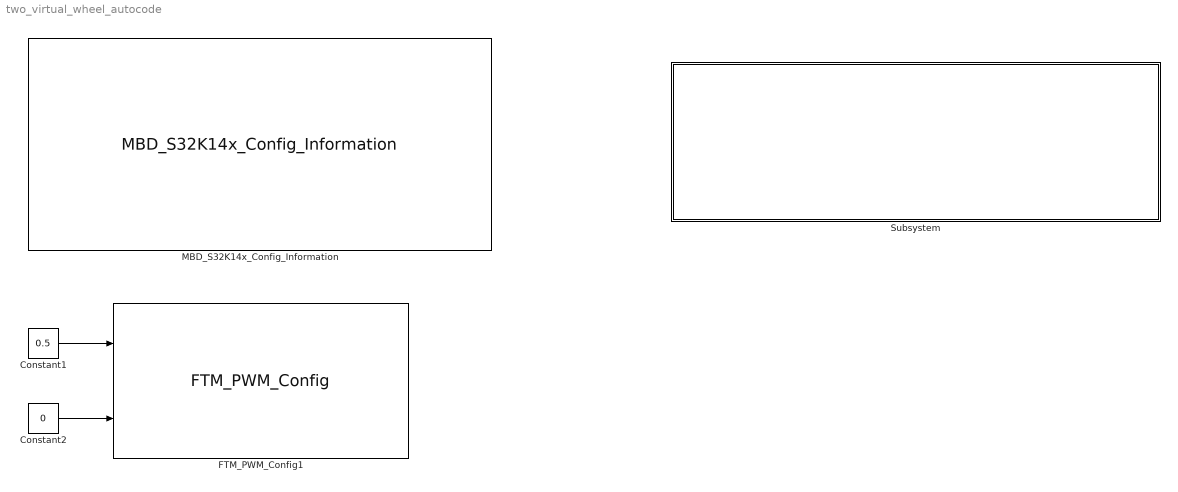
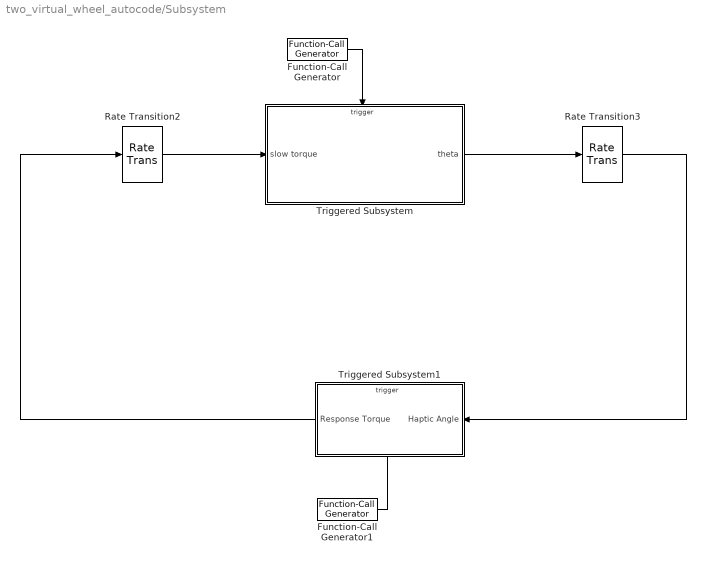
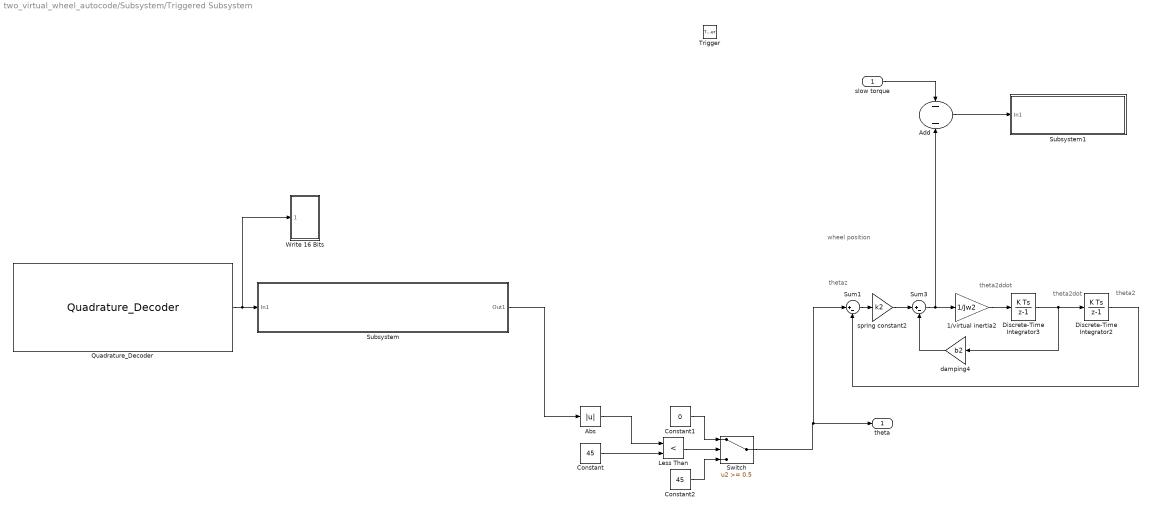
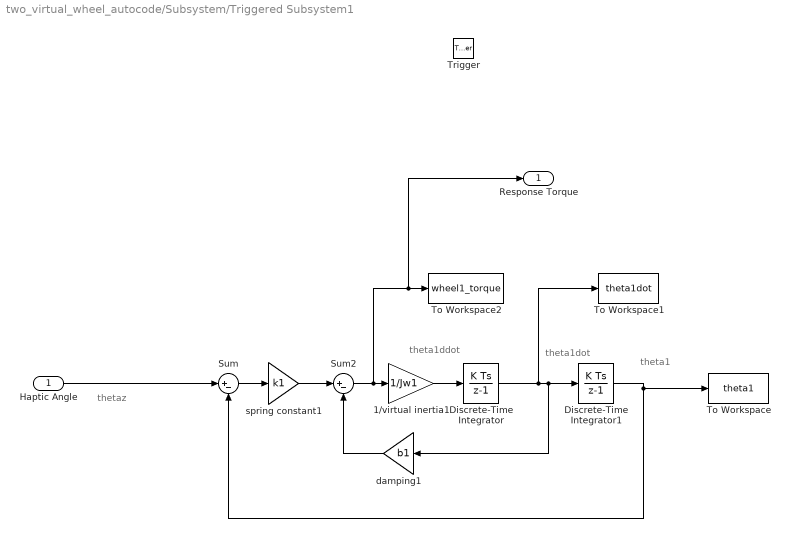
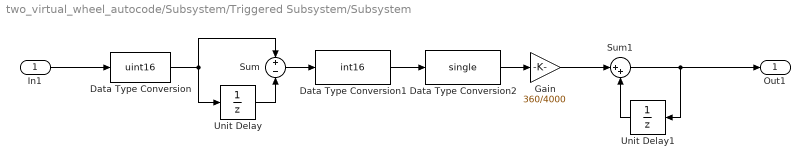
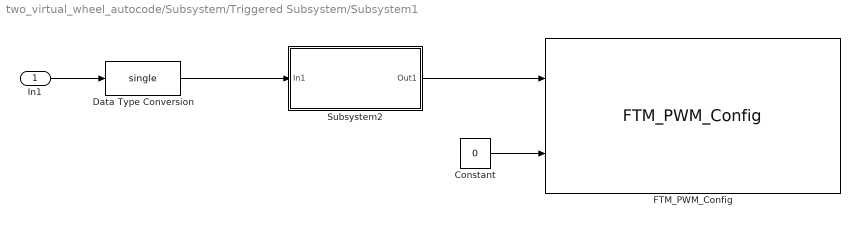
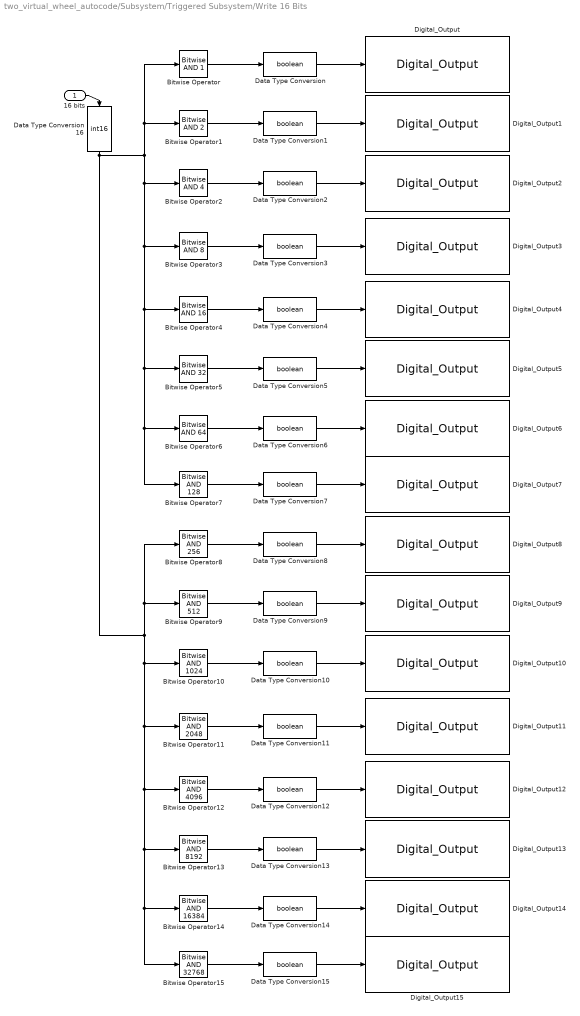
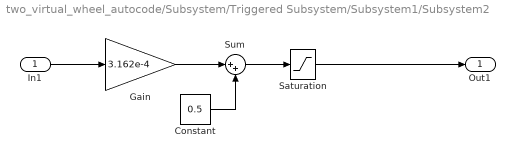
/*
 * Academic License - for use in teaching, academic research, and meeting
 * course requirements at degree granting institutions only.  Not for
 * government, commercial, or other organizational use.
 *
 * File: two_virtual_wheel_autocode.c
 *
 * Code generated for Simulink model 'two_virtual_wheel_autocode'.
 *
 * Model version                   : 1.77
 * Simulink Coder version          : 8.14 (R2018a) 06-Feb-2018
 * MBDT for S32K1xx Series Version : 2018.R1 (R2016b-R2018a) 23-Jul-2018
 * C/C++ source code generated on  : Fri Mar 29 12:54:46 2019
 *
 * Target selection: mbd_s32k14.tlc
 * Embedded hardware selection: ARM Compatible->ARM Cortex
 * Emulation hardware selection:
 *    Differs from embedded hardware (MATLAB Host)
 * Code generation objective: Traceability
 * Validation result: Not run
 */

#include "two_virtual_wheel_autocode.h"
#include "two_virtual_wheel_autocode_private.h"

/* Block signals (default storage) */
B_two_virtual_wheel_autocode_T two_virtual_wheel_autocode_B;

/* Block states (default storage) */
DW_two_virtual_wheel_autocode_T two_virtual_wheel_autocode_DW;

/* Real-time model */
RT_MODEL_two_virtual_wheel_au_T two_virtual_wheel_autocode_M_;
RT_MODEL_two_virtual_wheel_au_T *const two_virtual_wheel_autocode_M =
  &two_virtual_wheel_autocode_M_;
static void rate_monotonic_scheduler(void);

/*
 * Set which subrates need to run this base step (base rate always runs).
 * This function must be called prior to calling the model step function
 * in order to "remember" which rates need to run this base step.  The
 * buffering of events allows for overlapping preemption.
 */
void two_virtual_wheel_autocode_SetEventsForThisBaseStep(boolean_T *eventFlags)
{
  /* Task runs when its counter is zero, computed via rtmStepTask macro */
  eventFlags[1] = ((boolean_T)rtmStepTask(two_virtual_wheel_autocode_M, 1));
  eventFlags[2] = ((boolean_T)rtmStepTask(two_virtual_wheel_autocode_M, 2));
}

/*
 *   This function updates active task flag for each subrate
 * and rate transition flags for tasks that exchange data.
 * The function assumes rate-monotonic multitasking scheduler.
 * The function must be called at model base rate so that
 * the generated code self-manages all its subrates and rate
 * transition flags.
 */
static void rate_monotonic_scheduler(void)
{
  /* To ensure a deterministic data transfer between two rates,
   * data is transferred at the priority of a fast task and the frequency
   * of the slow task.  The following flags indicate when the data transfer
   * happens.  That is, a rate interaction flag is set true when both rates
   * will run, and false otherwise.
   */

  /* tid 1 shares data with slower tid rate: 2 */
  if (two_virtual_wheel_autocode_M->Timing.TaskCounters.TID[1] == 0) {
    two_virtual_wheel_autocode_M->Timing.RateInteraction.TID1_2 =
      (two_virtual_wheel_autocode_M->Timing.TaskCounters.TID[2] == 0);
  }

  /* Compute which subrates run during the next base time step.  Subrates
   * are an integer multiple of the base rate counter.  Therefore, the subtask
   * counter is reset when it reaches its limit (zero means run).
   */
  (two_virtual_wheel_autocode_M->Timing.TaskCounters.TID[1])++;
  if ((two_virtual_wheel_autocode_M->Timing.TaskCounters.TID[1]) > 1) {/* Sample time: [0.002s, 0.0s] */
    two_virtual_wheel_autocode_M->Timing.TaskCounters.TID[1] = 0;
  }

  (two_virtual_wheel_autocode_M->Timing.TaskCounters.TID[2])++;
  if ((two_virtual_wheel_autocode_M->Timing.TaskCounters.TID[2]) > 19) {/* Sample time: [0.02s, 0.0s] */
    two_virtual_wheel_autocode_M->Timing.TaskCounters.TID[2] = 0;
  }
}

/* Model step function for TID0 */
void two_virtual_wheel_autocode_step0(void) /* Sample time: [0.001s, 0.0s] */
{
  {                                    /* Sample time: [0.001s, 0.0s] */
    rate_monotonic_scheduler();
  }
}

/* Model step function for TID1 */
void two_virtual_wheel_autocode_step1(void) /* Sample time: [0.002s, 0.0s] */
{
  uint16_T rtb_DataTypeConversion;
  real32_T rtb_Sum3;
  int32_T Switch;
  uint32_T TriggeredSubsystem_ELAPS_T;
  uint32_T TriggeredSubsystem_ELAPS_T_tmp;
  real32_T DiscreteTimeIntegrator2_DSTATE_;

  /* S-Function (ftm_s32k14_pwm_config): '<Root>/FTM_PWM_Config1' incorporates:
   *  Constant: '<Root>/Constant1'
   *  Constant: '<Root>/Constant2'
   */
  {
    uint16_t dutyA = FTM_MAX_DUTY_CYCLE * 0.5F;
    FTM_DRV_UpdatePwmChannel(FTM_PWM3, 0U, FTM_PWM_UPDATE_IN_DUTY_CYCLE, dutyA,
      0, true);
  }

  /* RateTransition: '<S1>/Rate Transition2' */
  if (two_virtual_wheel_autocode_M->Timing.RateInteraction.TID1_2) {
    two_virtual_wheel_autocode_B.RateTransition2 =
      two_virtual_wheel_autocode_DW.RateTransition2_Buffer0;
  }

  /* End of RateTransition: '<S1>/Rate Transition2' */

  /* S-Function (fcncallgen): '<S1>/Function-Call Generator' incorporates:
   *  SubSystem: '<S1>/Triggered Subsystem'
   */
  TriggeredSubsystem_ELAPS_T_tmp =
    two_virtual_wheel_autocode_M->Timing.clockTick1;
  TriggeredSubsystem_ELAPS_T = TriggeredSubsystem_ELAPS_T_tmp -
    two_virtual_wheel_autocode_DW.TriggeredSubsystem_PREV_T;
  two_virtual_wheel_autocode_DW.TriggeredSubsystem_PREV_T =
    TriggeredSubsystem_ELAPS_T_tmp;

  /* S-Function (ftm_s32k14_quadrature_decoder): '<S2>/Quadrature_Decoder' */

  /* FTM2: get counter value */
  two_virtual_wheel_autocode_B.Quadrature_Decoder = FTM_DRV_GetCounter (FTM2);

  /* DataTypeConversion: '<S4>/Data Type Conversion' */
  rtb_DataTypeConversion = (uint16_T)
    two_virtual_wheel_autocode_B.Quadrature_Decoder;

  /* Sum: '<S4>/Sum1' incorporates:
   *  DataTypeConversion: '<S4>/Data Type Conversion1'
   *  DataTypeConversion: '<S4>/Data Type Conversion2'
   *  Gain: '<S4>/Gain'
   *  Sum: '<S4>/Sum'
   *  UnitDelay: '<S4>/Unit Delay'
   *  UnitDelay: '<S4>/Unit Delay1'
   */
  two_virtual_wheel_autocode_DW.UnitDelay1_DSTATE += (real32_T)(int16_T)
    (rtb_DataTypeConversion - two_virtual_wheel_autocode_DW.UnitDelay_DSTATE) *
    0.09F;

  /* Switch: '<S2>/Switch' incorporates:
   *  Abs: '<S2>/Abs'
   *  Constant: '<S2>/Constant'
   *  Constant: '<S2>/Constant1'
   *  Constant: '<S2>/Constant2'
   *  RelationalOperator: '<S2>/Less Than'
   *  UnitDelay: '<S4>/Unit Delay1'
   */
  if ((real32_T)fabs(two_virtual_wheel_autocode_DW.UnitDelay1_DSTATE) < 45.0F) {
    Switch = 0;
  } else {
    Switch = 45;
  }

  /* End of Switch: '<S2>/Switch' */

  /* Sum: '<S2>/Sum3' incorporates:
   *  DiscreteIntegrator: '<S2>/Discrete-Time Integrator2'
   *  DiscreteIntegrator: '<S2>/Discrete-Time Integrator3'
   *  Gain: '<S2>/damping4'
   *  Gain: '<S2>/spring  constant2'
   *  Sum: '<S2>/Sum1'
   */
  rtb_Sum3 = ((real32_T)Switch -
              two_virtual_wheel_autocode_DW.DiscreteTimeIntegrator2_DSTATE) *
    7.5F - 0.015F * two_virtual_wheel_autocode_DW.DiscreteTimeIntegrator3_DSTATE;

  /* Sum: '<S7>/Sum' incorporates:
   *  Constant: '<S7>/Constant'
   *  Gain: '<S7>/Gain'
   *  Sum: '<S2>/Add'
   */
  two_virtual_wheel_autocode_B.Saturation = ((0.0F -
    two_virtual_wheel_autocode_B.RateTransition2) - rtb_Sum3) * 0.0003162F +
    0.5F;

  /* Saturate: '<S7>/Saturation' */
  if (two_virtual_wheel_autocode_B.Saturation > 0.76F) {
    /* Sum: '<S7>/Sum' */
    two_virtual_wheel_autocode_B.Saturation = 0.76F;
  } else {
    if (two_virtual_wheel_autocode_B.Saturation < 0.24F) {
      /* Sum: '<S7>/Sum' */
      two_virtual_wheel_autocode_B.Saturation = 0.24F;
    }
  }

  /* End of Saturate: '<S7>/Saturation' */

  /* S-Function (ftm_s32k14_pwm_config): '<S5>/FTM_PWM_Config' incorporates:
   *  Constant: '<S5>/Constant'
   */
  {
    uint16_t dutyA = FTM_MAX_DUTY_CYCLE *
      two_virtual_wheel_autocode_B.Saturation;
    FTM_DRV_UpdatePwmChannel(FTM_PWM0, 0U, FTM_PWM_UPDATE_IN_DUTY_CYCLE, dutyA,
      0, true);
  }

  /* DataTypeConversion: '<S6>/Data Type Conversion' incorporates:
   *  S-Function (sfix_bitop): '<S6>/Bitwise Operator'
   */
  two_virtual_wheel_autocode_B.DataTypeConversion =
    ((two_virtual_wheel_autocode_B.Quadrature_Decoder & 1U) != 0U);

  /* S-Function (gpio_s32k14_output): '<S6>/Digital_Output' */

  /* GPOPORTD0 Data Signal Update */
  if (two_virtual_wheel_autocode_B.DataTypeConversion) {
    PINS_DRV_SetPins(PTD, 1UL<<0);
  } else {
    PINS_DRV_ClearPins(PTD, 1UL<<0);
  }

  /* DataTypeConversion: '<S6>/Data Type Conversion1' incorporates:
   *  S-Function (sfix_bitop): '<S6>/Bitwise Operator1'
   */
  two_virtual_wheel_autocode_B.DataTypeConversion1 =
    ((two_virtual_wheel_autocode_B.Quadrature_Decoder & 2U) != 0U);

  /* S-Function (gpio_s32k14_output): '<S6>/Digital_Output1' */

  /* GPOPORTD1 Data Signal Update */
  if (two_virtual_wheel_autocode_B.DataTypeConversion1) {
    PINS_DRV_SetPins(PTD, 1UL<<1);
  } else {
    PINS_DRV_ClearPins(PTD, 1UL<<1);
  }

  /* DataTypeConversion: '<S6>/Data Type Conversion10' incorporates:
   *  S-Function (sfix_bitop): '<S6>/Bitwise Operator10'
   */
  two_virtual_wheel_autocode_B.DataTypeConversion10 =
    ((two_virtual_wheel_autocode_B.Quadrature_Decoder & 1024U) != 0U);

  /* S-Function (gpio_s32k14_output): '<S6>/Digital_Output10' */

  /* GPOPORTD10 Data Signal Update */
  if (two_virtual_wheel_autocode_B.DataTypeConversion10) {
    PINS_DRV_SetPins(PTD, 1UL<<10);
  } else {
    PINS_DRV_ClearPins(PTD, 1UL<<10);
  }

  /* DataTypeConversion: '<S6>/Data Type Conversion11' incorporates:
   *  S-Function (sfix_bitop): '<S6>/Bitwise Operator11'
   */
  two_virtual_wheel_autocode_B.DataTypeConversion11 =
    ((two_virtual_wheel_autocode_B.Quadrature_Decoder & 2048U) != 0U);

  /* S-Function (gpio_s32k14_output): '<S6>/Digital_Output11' */

  /* GPOPORTD11 Data Signal Update */
  if (two_virtual_wheel_autocode_B.DataTypeConversion11) {
    PINS_DRV_SetPins(PTD, 1UL<<11);
  } else {
    PINS_DRV_ClearPins(PTD, 1UL<<11);
  }

  /* DataTypeConversion: '<S6>/Data Type Conversion12' incorporates:
   *  S-Function (sfix_bitop): '<S6>/Bitwise Operator12'
   */
  two_virtual_wheel_autocode_B.DataTypeConversion12 =
    ((two_virtual_wheel_autocode_B.Quadrature_Decoder & 4096U) != 0U);

  /* S-Function (gpio_s32k14_output): '<S6>/Digital_Output12' */

  /* GPOPORTD12 Data Signal Update */
  if (two_virtual_wheel_autocode_B.DataTypeConversion12) {
    PINS_DRV_SetPins(PTD, 1UL<<12);
  } else {
    PINS_DRV_ClearPins(PTD, 1UL<<12);
  }

  /* DataTypeConversion: '<S6>/Data Type Conversion13' incorporates:
   *  S-Function (sfix_bitop): '<S6>/Bitwise Operator13'
   */
  two_virtual_wheel_autocode_B.DataTypeConversion13 =
    ((two_virtual_wheel_autocode_B.Quadrature_Decoder & 8192U) != 0U);

  /* S-Function (gpio_s32k14_output): '<S6>/Digital_Output13' */

  /* GPOPORTD13 Data Signal Update */
  if (two_virtual_wheel_autocode_B.DataTypeConversion13) {
    PINS_DRV_SetPins(PTD, 1UL<<13);
  } else {
    PINS_DRV_ClearPins(PTD, 1UL<<13);
  }

  /* DataTypeConversion: '<S6>/Data Type Conversion14' incorporates:
   *  S-Function (sfix_bitop): '<S6>/Bitwise Operator14'
   */
  two_virtual_wheel_autocode_B.DataTypeConversion14 =
    ((two_virtual_wheel_autocode_B.Quadrature_Decoder & 16384U) != 0U);

  /* S-Function (gpio_s32k14_output): '<S6>/Digital_Output14' */

  /* GPOPORTD14 Data Signal Update */
  if (two_virtual_wheel_autocode_B.DataTypeConversion14) {
    PINS_DRV_SetPins(PTD, 1UL<<14);
  } else {
    PINS_DRV_ClearPins(PTD, 1UL<<14);
  }

  /* DataTypeConversion: '<S6>/Data Type Conversion15' incorporates:
   *  S-Function (sfix_bitop): '<S6>/Bitwise Operator15'
   */
  two_virtual_wheel_autocode_B.DataTypeConversion15 = ((int16_T)
    (two_virtual_wheel_autocode_B.Quadrature_Decoder & MIN_int16_T) != 0);

  /* S-Function (gpio_s32k14_output): '<S6>/Digital_Output15' */

  /* GPOPORTD15 Data Signal Update */
  if (two_virtual_wheel_autocode_B.DataTypeConversion15) {
    PINS_DRV_SetPins(PTD, 1UL<<15);
  } else {
    PINS_DRV_ClearPins(PTD, 1UL<<15);
  }

  /* DataTypeConversion: '<S6>/Data Type Conversion2' incorporates:
   *  S-Function (sfix_bitop): '<S6>/Bitwise Operator2'
   */
  two_virtual_wheel_autocode_B.DataTypeConversion2 =
    ((two_virtual_wheel_autocode_B.Quadrature_Decoder & 4U) != 0U);

  /* S-Function (gpio_s32k14_output): '<S6>/Digital_Output2' */

  /* GPOPORTD2 Data Signal Update */
  if (two_virtual_wheel_autocode_B.DataTypeConversion2) {
    PINS_DRV_SetPins(PTD, 1UL<<2);
  } else {
    PINS_DRV_ClearPins(PTD, 1UL<<2);
  }

  /* DataTypeConversion: '<S6>/Data Type Conversion3' incorporates:
   *  S-Function (sfix_bitop): '<S6>/Bitwise Operator3'
   */
  two_virtual_wheel_autocode_B.DataTypeConversion3 =
    ((two_virtual_wheel_autocode_B.Quadrature_Decoder & 8U) != 0U);

  /* S-Function (gpio_s32k14_output): '<S6>/Digital_Output3' */

  /* GPOPORTD3 Data Signal Update */
  if (two_virtual_wheel_autocode_B.DataTypeConversion3) {
    PINS_DRV_SetPins(PTD, 1UL<<3);
  } else {
    PINS_DRV_ClearPins(PTD, 1UL<<3);
  }

  /* DataTypeConversion: '<S6>/Data Type Conversion4' incorporates:
   *  S-Function (sfix_bitop): '<S6>/Bitwise Operator4'
   */
  two_virtual_wheel_autocode_B.DataTypeConversion4 =
    ((two_virtual_wheel_autocode_B.Quadrature_Decoder & 16U) != 0U);

  /* S-Function (gpio_s32k14_output): '<S6>/Digital_Output4' */

  /* GPOPORTD4 Data Signal Update */
  if (two_virtual_wheel_autocode_B.DataTypeConversion4) {
    PINS_DRV_SetPins(PTD, 1UL<<4);
  } else {
    PINS_DRV_ClearPins(PTD, 1UL<<4);
  }

  /* DataTypeConversion: '<S6>/Data Type Conversion5' incorporates:
   *  S-Function (sfix_bitop): '<S6>/Bitwise Operator5'
   */
  two_virtual_wheel_autocode_B.DataTypeConversion5 =
    ((two_virtual_wheel_autocode_B.Quadrature_Decoder & 32U) != 0U);

  /* S-Function (gpio_s32k14_output): '<S6>/Digital_Output5' */

  /* GPOPORTD5 Data Signal Update */
  if (two_virtual_wheel_autocode_B.DataTypeConversion5) {
    PINS_DRV_SetPins(PTD, 1UL<<5);
  } else {
    PINS_DRV_ClearPins(PTD, 1UL<<5);
  }

  /* DataTypeConversion: '<S6>/Data Type Conversion6' incorporates:
   *  S-Function (sfix_bitop): '<S6>/Bitwise Operator6'
   */
  two_virtual_wheel_autocode_B.DataTypeConversion6 =
    ((two_virtual_wheel_autocode_B.Quadrature_Decoder & 64U) != 0U);

  /* S-Function (gpio_s32k14_output): '<S6>/Digital_Output6' */

  /* GPOPORTD6 Data Signal Update */
  if (two_virtual_wheel_autocode_B.DataTypeConversion6) {
    PINS_DRV_SetPins(PTD, 1UL<<6);
  } else {
    PINS_DRV_ClearPins(PTD, 1UL<<6);
  }

  /* DataTypeConversion: '<S6>/Data Type Conversion7' incorporates:
   *  S-Function (sfix_bitop): '<S6>/Bitwise Operator7'
   */
  two_virtual_wheel_autocode_B.DataTypeConversion7 =
    ((two_virtual_wheel_autocode_B.Quadrature_Decoder & 128U) != 0U);

  /* S-Function (gpio_s32k14_output): '<S6>/Digital_Output7' */

  /* GPOPORTD7 Data Signal Update */
  if (two_virtual_wheel_autocode_B.DataTypeConversion7) {
    PINS_DRV_SetPins(PTD, 1UL<<7);
  } else {
    PINS_DRV_ClearPins(PTD, 1UL<<7);
  }

  /* DataTypeConversion: '<S6>/Data Type Conversion8' incorporates:
   *  S-Function (sfix_bitop): '<S6>/Bitwise Operator8'
   */
  two_virtual_wheel_autocode_B.DataTypeConversion8 =
    ((two_virtual_wheel_autocode_B.Quadrature_Decoder & 256U) != 0U);

  /* S-Function (gpio_s32k14_output): '<S6>/Digital_Output8' */

  /* GPOPORTD8 Data Signal Update */
  if (two_virtual_wheel_autocode_B.DataTypeConversion8) {
    PINS_DRV_SetPins(PTD, 1UL<<8);
  } else {
    PINS_DRV_ClearPins(PTD, 1UL<<8);
  }

  /* DataTypeConversion: '<S6>/Data Type Conversion9' incorporates:
   *  S-Function (sfix_bitop): '<S6>/Bitwise Operator9'
   */
  two_virtual_wheel_autocode_B.DataTypeConversion9 =
    ((two_virtual_wheel_autocode_B.Quadrature_Decoder & 512U) != 0U);

  /* S-Function (gpio_s32k14_output): '<S6>/Digital_Output9' */

  /* GPOPORTD9 Data Signal Update */
  if (two_virtual_wheel_autocode_B.DataTypeConversion9) {
    PINS_DRV_SetPins(PTD, 1UL<<9);
  } else {
    PINS_DRV_ClearPins(PTD, 1UL<<9);
  }

  /* Update for UnitDelay: '<S4>/Unit Delay' */
  two_virtual_wheel_autocode_DW.UnitDelay_DSTATE = rtb_DataTypeConversion;

  /* Update for DiscreteIntegrator: '<S2>/Discrete-Time Integrator2' incorporates:
   *  DiscreteIntegrator: '<S2>/Discrete-Time Integrator3'
   *  DiscreteIntegrator: '<S2>/Discrete-Time Integrator3'
   */
  DiscreteTimeIntegrator2_DSTATE_ = 0.002F * (real32_T)
    TriggeredSubsystem_ELAPS_T;
  two_virtual_wheel_autocode_DW.DiscreteTimeIntegrator2_DSTATE +=
    DiscreteTimeIntegrator2_DSTATE_ *
    two_virtual_wheel_autocode_DW.DiscreteTimeIntegrator3_DSTATE;

  /* Update for DiscreteIntegrator: '<S2>/Discrete-Time Integrator3' incorporates:
   *  Gain: '<S2>/1//virtual inertia2'
   */
  two_virtual_wheel_autocode_DW.DiscreteTimeIntegrator3_DSTATE +=
    DiscreteTimeIntegrator2_DSTATE_ * (533.333313F * rtb_Sum3);

  /* End of Outputs for S-Function (fcncallgen): '<S1>/Function-Call Generator' */

  /* RateTransition: '<S1>/Rate Transition3' */
  if (two_virtual_wheel_autocode_M->Timing.RateInteraction.TID1_2) {
    two_virtual_wheel_autocode_B.RateTransition3 = (real32_T)Switch;
  }

  /* End of RateTransition: '<S1>/Rate Transition3' */

  /* Update absolute time */
  /* The "clockTick1" counts the number of times the code of this task has
   * been executed. The resolution of this integer timer is 0.002, which is the step size
   * of the task. Size of "clockTick1" ensures timer will not overflow during the
   * application lifespan selected.
   */
  two_virtual_wheel_autocode_M->Timing.clockTick1++;
}

/* Model step function for TID2 */
void two_virtual_wheel_autocode_step2(void) /* Sample time: [0.02s, 0.0s] */
{
  real32_T Sum2;
  uint32_T TriggeredSubsystem1_ELAPS_T;
  uint32_T TriggeredSubsystem1_ELAPS_T_tmp;
  real32_T DiscreteTimeIntegrator1_DSTATE_;

  /* S-Function (fcncallgen): '<S1>/Function-Call Generator1' incorporates:
   *  SubSystem: '<S1>/Triggered Subsystem1'
   */
  TriggeredSubsystem1_ELAPS_T_tmp =
    two_virtual_wheel_autocode_M->Timing.clockTick2;
  TriggeredSubsystem1_ELAPS_T = TriggeredSubsystem1_ELAPS_T_tmp -
    two_virtual_wheel_autocode_DW.TriggeredSubsystem1_PREV_T;
  two_virtual_wheel_autocode_DW.TriggeredSubsystem1_PREV_T =
    TriggeredSubsystem1_ELAPS_T_tmp;

  /* Sum: '<S3>/Sum2' incorporates:
   *  DiscreteIntegrator: '<S3>/Discrete-Time Integrator'
   *  DiscreteIntegrator: '<S3>/Discrete-Time Integrator1'
   *  Gain: '<S3>/damping1'
   *  Gain: '<S3>/spring  constant1'
   *  Sum: '<S3>/Sum'
   */
  Sum2 = (two_virtual_wheel_autocode_B.RateTransition3 -
          two_virtual_wheel_autocode_DW.DiscreteTimeIntegrator1_DSTATE) * 7.5F -
    0.15F * two_virtual_wheel_autocode_DW.DiscreteTimeIntegrator_DSTATE;

  /* Update for DiscreteIntegrator: '<S3>/Discrete-Time Integrator1' incorporates:
   *  DiscreteIntegrator: '<S3>/Discrete-Time Integrator'
   *  DiscreteIntegrator: '<S3>/Discrete-Time Integrator'
   */
  DiscreteTimeIntegrator1_DSTATE_ = 0.02F * (real32_T)
    TriggeredSubsystem1_ELAPS_T;
  two_virtual_wheel_autocode_DW.DiscreteTimeIntegrator1_DSTATE +=
    DiscreteTimeIntegrator1_DSTATE_ *
    two_virtual_wheel_autocode_DW.DiscreteTimeIntegrator_DSTATE;

  /* Update for DiscreteIntegrator: '<S3>/Discrete-Time Integrator' incorporates:
   *  Gain: '<S3>/1//virtual inertia1'
   */
  two_virtual_wheel_autocode_DW.DiscreteTimeIntegrator_DSTATE +=
    DiscreteTimeIntegrator1_DSTATE_ * (5.33333349F * Sum2);

  /* End of Outputs for S-Function (fcncallgen): '<S1>/Function-Call Generator1' */

  /* Update for RateTransition: '<S1>/Rate Transition2' */
  two_virtual_wheel_autocode_DW.RateTransition2_Buffer0 = Sum2;

  /* Update absolute time */
  /* The "clockTick2" counts the number of times the code of this task has
   * been executed. The resolution of this integer timer is 0.02, which is the step size
   * of the task. Size of "clockTick2" ensures timer will not overflow during the
   * application lifespan selected.
   */
  two_virtual_wheel_autocode_M->Timing.clockTick2++;
}

/* Model step wrapper function for compatibility with a static main program */
void two_virtual_wheel_autocode_step(int_T tid)
{
  switch (tid) {
   case 0 :
    two_virtual_wheel_autocode_step0();
    break;

   case 1 :
    two_virtual_wheel_autocode_step1();
    break;

   case 2 :
    two_virtual_wheel_autocode_step2();
    break;

   default :
    break;
  }
}
